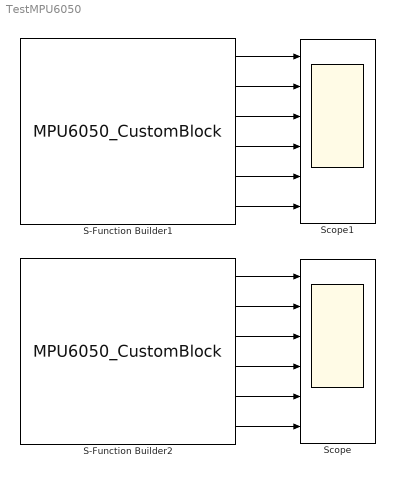
/*
 * Academic License - for use in teaching, academic research, and meeting
 * course requirements at degree granting institutions only.  Not for
 * government, commercial, or other organizational use.
 *
 * File: TestMPU6050.c
 *
 * Code generated for Simulink model 'TestMPU6050'.
 *
 * Model version                  : 1.64
 * Simulink Coder version         : 8.10 (R2016a) 10-Feb-2016
 * C/C++ source code generated on : Mon Aug 22 12:24:22 2016
 *
 * Target selection: ert.tlc
 * Embedded hardware selection: ARM Compatible->ARM Cortex
 * Code generation objectives: Unspecified
 * Validation result: Not run
 */

#include "TestMPU6050.h"
#include "TestMPU6050_private.h"
#include "TestMPU6050_dt.h"

/* Block signals (auto storage) */
B_TestMPU6050_T TestMPU6050_B;

/* Block states (auto storage) */
DW_TestMPU6050_T TestMPU6050_DW;

/* Real-time model */
RT_MODEL_TestMPU6050_T TestMPU6050_M_;
RT_MODEL_TestMPU6050_T *const TestMPU6050_M = &TestMPU6050_M_;

/* Model step function */
void TestMPU6050_step(void)
{
  /* S-Function (MPU6050_CustomBlock): '<Root>/S-Function Builder1' */
  MPU6050_CustomBlock_Outputs_wrapper( &TestMPU6050_B.SFunctionBuilder1_o1,
    &TestMPU6050_B.SFunctionBuilder1_o2, &TestMPU6050_B.SFunctionBuilder1_o3,
    &TestMPU6050_B.SFunctionBuilder1_o4, &TestMPU6050_B.SFunctionBuilder1_o5,
    &TestMPU6050_B.SFunctionBuilder1_o6,
    &TestMPU6050_DW.SFunctionBuilder1_DSTATE,
    &TestMPU6050_P.SFunctionBuilder1_P1, 1, &TestMPU6050_P.SFunctionBuilder1_P2,
    1);

  /* S-Function (MPU6050_CustomBlock): '<Root>/S-Function Builder2' */
  MPU6050_CustomBlock_Outputs_wrapper( &TestMPU6050_B.SFunctionBuilder2_o1,
    &TestMPU6050_B.SFunctionBuilder2_o2, &TestMPU6050_B.SFunctionBuilder2_o3,
    &TestMPU6050_B.SFunctionBuilder2_o4, &TestMPU6050_B.SFunctionBuilder2_o5,
    &TestMPU6050_B.SFunctionBuilder2_o6,
    &TestMPU6050_DW.SFunctionBuilder2_DSTATE,
    &TestMPU6050_P.SFunctionBuilder2_P1, 1, &TestMPU6050_P.SFunctionBuilder2_P2,
    1);

  /* S-Function "MPU6050_CustomBlock_wrapper" Block: <Root>/S-Function Builder1 */
  MPU6050_CustomBlock_Update_wrapper( &TestMPU6050_B.SFunctionBuilder1_o1,
    &TestMPU6050_B.SFunctionBuilder1_o2, &TestMPU6050_B.SFunctionBuilder1_o3,
    &TestMPU6050_B.SFunctionBuilder1_o4, &TestMPU6050_B.SFunctionBuilder1_o5,
    &TestMPU6050_B.SFunctionBuilder1_o6,
    &TestMPU6050_DW.SFunctionBuilder1_DSTATE,
    &TestMPU6050_P.SFunctionBuilder1_P1, 1, &TestMPU6050_P.SFunctionBuilder1_P2,
    1);

  /* S-Function "MPU6050_CustomBlock_wrapper" Block: <Root>/S-Function Builder2 */
  MPU6050_CustomBlock_Update_wrapper( &TestMPU6050_B.SFunctionBuilder2_o1,
    &TestMPU6050_B.SFunctionBuilder2_o2, &TestMPU6050_B.SFunctionBuilder2_o3,
    &TestMPU6050_B.SFunctionBuilder2_o4, &TestMPU6050_B.SFunctionBuilder2_o5,
    &TestMPU6050_B.SFunctionBuilder2_o6,
    &TestMPU6050_DW.SFunctionBuilder2_DSTATE,
    &TestMPU6050_P.SFunctionBuilder2_P1, 1, &TestMPU6050_P.SFunctionBuilder2_P2,
    1);

  /* External mode */
  rtExtModeUploadCheckTrigger(1);

  {                                    /* Sample time: [0.05s, 0.0s] */
    rtExtModeUpload(0, TestMPU6050_M->Timing.taskTime0);
  }

  /* signal main to stop simulation */
  {                                    /* Sample time: [0.05s, 0.0s] */
    if ((rtmGetTFinal(TestMPU6050_M)!=-1) &&
        !((rtmGetTFinal(TestMPU6050_M)-TestMPU6050_M->Timing.taskTime0) >
          TestMPU6050_M->Timing.taskTime0 * (DBL_EPSILON))) {
      rtmSetErrorStatus(TestMPU6050_M, "Simulation finished");
    }

    if (rtmGetStopRequested(TestMPU6050_M)) {
      rtmSetErrorStatus(TestMPU6050_M, "Simulation finished");
    }
  }

  /* Update absolute time for base rate */
  /* The "clockTick0" counts the number of times the code of this task has
   * been executed. The absolute time is the multiplication of "clockTick0"
   * and "Timing.stepSize0". Size of "clockTick0" ensures timer will not
   * overflow during the application lifespan selected.
   * Timer of this task consists of two 32 bit unsigned integers.
   * The two integers represent the low bits Timing.clockTick0 and the high bits
   * Timing.clockTickH0. When the low bit overflows to 0, the high bits increment.
   */
  if (!(++TestMPU6050_M->Timing.clockTick0)) {
    ++TestMPU6050_M->Timing.clockTickH0;
  }

  TestMPU6050_M->Timing.taskTime0 = TestMPU6050_M->Timing.clockTick0 *
    TestMPU6050_M->Timing.stepSize0 + TestMPU6050_M->Timing.clockTickH0 *
    TestMPU6050_M->Timing.stepSize0 * 4294967296.0;
}
